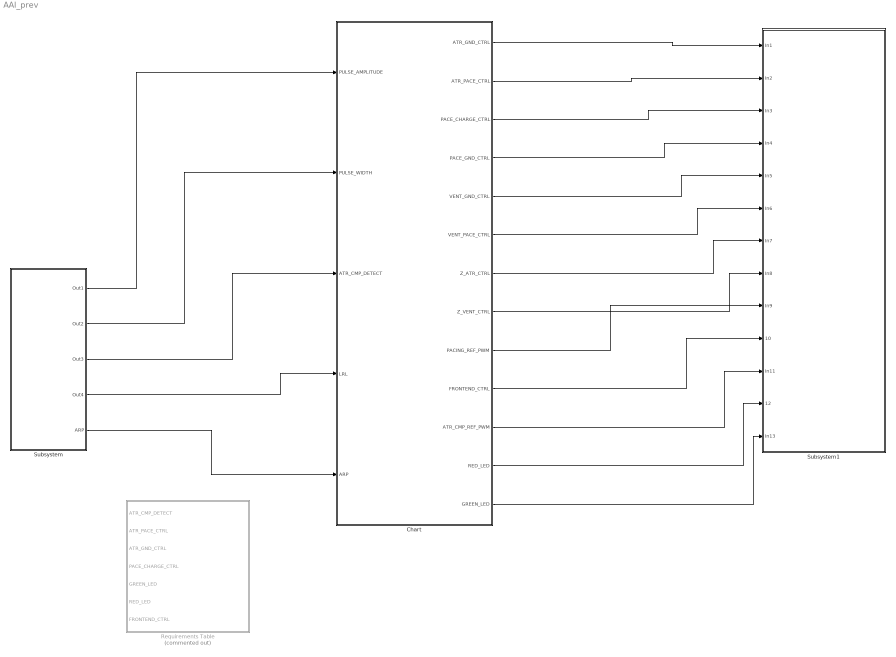
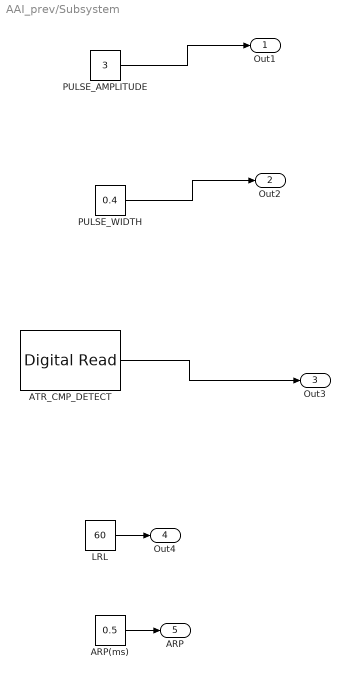
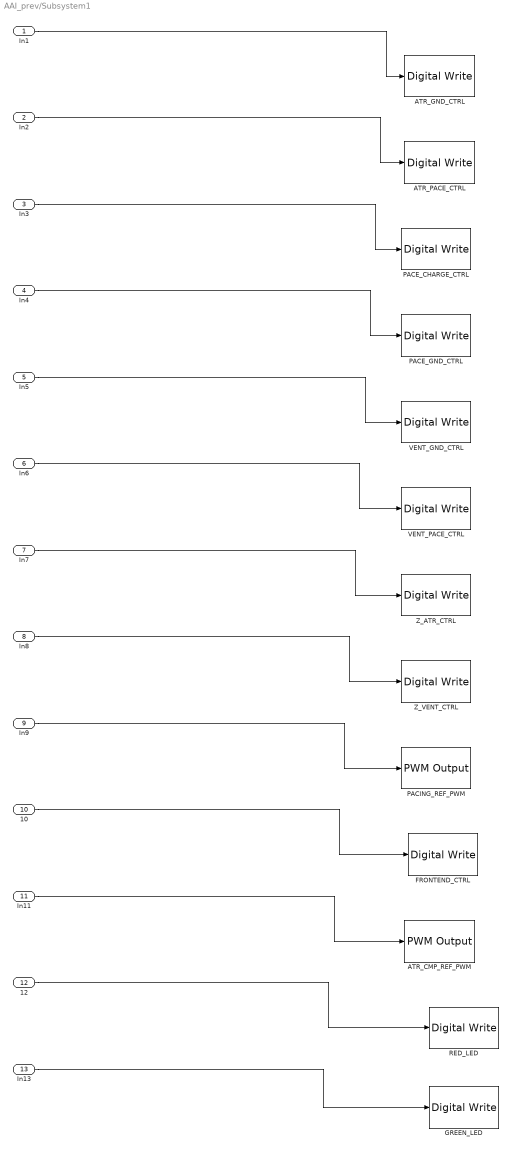
== stateflow chart AAI_prev/Requirements Table ==
  (default) -> (junction 1073742813)
  (junction 1073742813) -> (junction 1073742814) : { % SF_REQ_REV_07 }
  (junction 1073742814) -> (junction 1073742816) : { % HEADER_ASSIGNMENTS  }
  (junction 1073742816) -> (junction 1073742818) : { % START_A_4 }
  (junction 1073742818) -> (junction 1073742820) : { }
  (junction 1073742820) -> (junction 1073742822)
  (junction 1073742822) -> (junction 1073742824) : { }
  (junction 1073742824) -> (junction 1073742826) : { % END_A_4 }
  (junction 1073742826) -> (junction 1073742828) : { % START_R_1 }
  (junction 1073742828) -> (junction 1073742830) : { }
  (junction 1073742830) -> (junction 1073742832) : {       }
  (junction 1073742832) -> (junction 1073742834) : { }
  (junction 1073742834) -> (junction 1073742836) : { % START_R_7 }
  (junction 1073742836) -> (junction 1073742838) : { }
  (junction 1073742838) -> (junction 1073742840)
  (junction 1073742840) -> (junction 1073742842) [order 1] : [(prev(FRONTEND_CTRL)==true) && (prev(PACE_CHARGE_CTRL)==true) && (prev(ATR_PACE_CTRL)==false) && (prev(ATR_GND_CTRL)==true) && (prev(RED_LED)==false) && (prev(GREEN_LED)==false)]
  (junction 1073742840) -> (junction 1073742884) [order 2]
  (junction 1073742842) -> (junction 1073742844) : {       }
  (junction 1073742844) -> (junction 1073742846) : { }
  (junction 1073742846) -> (junction 1073742848) : { % START_R_10 }
  (junction 1073742848) -> (junction 1073742850) : { }
  (junction 1073742850) -> (junction 1073742852)
  (junction 1073742852) -> (junction 1073742854) [order 1] : [(prev(ATR_CMP_DETECT)==true)]
  (junction 1073742852) -> (junction 1073742860) [order 2]
  (junction 1073742854) -> (junction 1073742856) : { reqtable_postcondition((FRONTEND_CTRL==false) && (PACE_CHARGE_CTRL==false) && (ATR_PACE_CTRL==false) && (ATR_GND_CTRL == true) && (GREEN_LED==true), 'R:1.1.1');       }
  (junction 1073742856) -> (junction 1073742858) : { }
  (junction 1073742858) -> (junction 1073742860)
  (junction 1073742860) -> (junction 1073742862)
  (junction 1073742862) -> (junction 1073742864) : { % END_R_10 }
  (junction 1073742864) -> (junction 1073742866) : { % START_R_13 }
  (junction 1073742866) -> (junction 1073742868) : { }
  (junction 1073742868) -> (junction 1073742870)
  (junction 1073742870) -> (junction 1073742872) [order 1] : [duration((prev(ATR_CMP_DETECT)==false)) >= ((60000/LRL)-PULSE_WIDTH)/1000]
  (junction 1073742870) -> (junction 1073742878) [order 2]
  (junction 1073742872) -> (junction 1073742874) : { reqtable_postcondition((FRONTEND_CTRL==true) && (PACE_CHARGE_CTRL==false) && (ATR_PACE_CTRL==true) && (ATR_GND_CTRL == false) && (RED_LED==true), 'R:1.1.2');       }
  (junction 1073742874) -> (junction 1073742876) : { }
  (junction 1073742876) -> (junction 1073742878)
  (junction 1073742878) -> (junction 1073742880)
  (junction 1073742880) -> (junction 1073742882) : { % END_R_13 }
  (junction 1073742882) -> (junction 1073742884)
  (junction 1073742884) -> (junction 1073742886)
  (junction 1073742886) -> (junction 1073742888) : { % END_R_7 }
  (junction 1073742888) -> (junction 1073742890) : { % START_R_16 }
  (junction 1073742890) -> (junction 1073742892) : { }
  (junction 1073742892) -> (junction 1073742894)
  (junction 1073742894) -> (junction 1073742896) [order 1] : [(prev(FRONTEND_CTRL)==true) && (prev(PACE_CHARGE_CTRL)==false) && (prev(ATR_PACE_CTRL)==true) && (prev(ATR_GND_CTRL)==false) && (prev(RED_LED)==true) && (prev(GREEN_LED)==false)]
  (junction 1073742894) -> (junction 1073742938) [order 2]
  (junction 1073742896) -> (junction 1073742898) : {       }
  (junction 1073742898) -> (junction 1073742900) : { }
  (junction 1073742900) -> (junction 1073742902) : { % START_R_19 }
  (junction 1073742902) -> (junction 1073742904) : { }
  (junction 1073742904) -> (junction 1073742906)
  (junction 1073742906) -> (junction 1073742908) [order 1] : [duration((prev(ATR_CMP_DETECT)==false)) >= (PULSE_WIDTH)/1000]
  (junction 1073742906) -> (junction 1073742914) [order 2]
  (junction 1073742908) -> (junction 1073742910) : { reqtable_postcondition((FRONTEND_CTRL==true) && (PACE_CHARGE_CTRL==true) && (ATR_PACE_CTRL==false) && (ATR_GND_CTRL == true) && (RED_LED==false), 'R:1.2.1');       }
  (junction 1073742910) -> (junction 1073742912) : { }
  (junction 1073742912) -> (junction 1073742914)
  (junction 1073742914) -> (junction 1073742916)
  (junction 1073742916) -> (junction 1073742918) : { % END_R_19 }
  (junction 1073742918) -> (junction 1073742920) : { % START_R_22 }
  (junction 1073742920) -> (junction 1073742922) : { }
  (junction 1073742922) -> (junction 1073742924)
  (junction 1073742924) -> (junction 1073742926) [order 1] : [(prev(ATR_CMP_DETECT)==true)]
  (junction 1073742924) -> (junction 1073742932) [order 2]
  (junction 1073742926) -> (junction 1073742928) : { reqtable_postcondition((FRONTEND_CTRL==false) && (PACE_CHARGE_CTRL==false) && (ATR_PACE_CTRL==false) && (ATR_GND_CTRL == true) && (GREEN_LED==true), 'R:1.2.2');       }
  (junction 1073742928) -> (junction 1073742930) : { }
  (junction 1073742930) -> (junction 1073742932)
  (junction 1073742932) -> (junction 1073742934)
  (junction 1073742934) -> (junction 1073742936) : { % END_R_22 }
  (junction 1073742936) -> (junction 1073742938)
  (junction 1073742938) -> (junction 1073742940)
  (junction 1073742940) -> (junction 1073742942) : { % END_R_16 }
  (junction 1073742942) -> (junction 1073742944) : { % START_R_25 }
  (junction 1073742944) -> (junction 1073742946) : { }
  (junction 1073742946) -> (junction 1073742948)
  (junction 1073742948) -> (junction 1073742950) [order 1] : [(prev(FRONTEND_CTRL)==false) && (prev(PACE_CHARGE_CTRL)==false) && (prev(ATR_PACE_CTRL)==false) && (prev(ATR_GND_CTRL)==true) && (prev(GREEN_LED)==true)]
  (junction 1073742948) -> (junction 1073742956) [order 2]
  (junction 1073742950) -> (junction 1073742952) : { reqtable_postcondition((FRONTEND_CTRL==true) && (PACE_CHARGE_CTRL==true) && (ATR_PACE_CTRL==false) && (ATR_GND_CTRL == true) && (GREEN_LED==false), 'R:1.3');       }
  (junction 1073742952) -> (junction 1073742954) : { }
  (junction 1073742954) -> (junction 1073742956)
  (junction 1073742956) -> (junction 1073742958)
  (junction 1073742958) -> (junction 1073742960) : { % END_R_25 }
  (junction 1073742960) -> (junction 1073742962) : { % END_R_1 }
  data: ATR_CMP_DETECT input; PULSE_WIDTH constant double; LRL constant double; ATR_PACE_CTRL input; ATR_GND_CTRL input; PACE_CHARGE_CTRL input; GREEN_LED input; RED_LED input; FRONTEND_CTRL input

== stateflow chart AAI_prev/Chart ==
  state PACE_OFF
    entry:
    ATR_PACE_CTRL = 0
    VENT_PACE_CTRL = 0
    PACING_REF_PWM = 20*PULSE_AMPLITUDE
    PACE_CHARGE_CTRL = 1
    PACE_GND_CTRL = 1
    Z_ATR_CTRL = 0
    Z_VENT_CTRL = 0
    ATR_GND_CTRL = 1
    VENT_GND_CTRL = 0
    FRONTEND_CTRL = 1
    ATR_CMP_REF_PWM = 20*PULSE_AMPLITUDE
    % light indicators
    RED_LED = 0
    GREEN_LED = 0
  state PACE_ON
    entry:
    PACE_CHARGE_CTRL = 0
    PACE_GND_CTRL = 1
    ATR_PACE_CTRL = 1
    ATR_GND_CTRL = 0
    Z_ATR_CTRL = 0
    Z_VENT_CTRL = 0
    VENT_GND_CTRL = 0
    VENT_PACE_CTRL = 0
    % light indicator
    RED_LED = 1
  note: at paceon state, the system waits for the atr_cmp_detect signal to decide which mode to go to . if atr_cmp_detect == 0, pace on. else, go refractory mode.
  note: when pacing, after the pulse width, the mode would change to refractory mdoe
  state REFRACTORY
    entry:
    FRONTEND_CTRL = 0
    ATR_PACE_CTRL = 0
    ATR_GND_CTRL = 1
    PACING_REF_PWM = 20*PULSE_AMPLITUDE
    PACE_CHARGE_CTRL = 0
    PACE_GND_CTRL = 1
    % light indicator
    GREEN_LED = 1
  (default) -> PACE_OFF
  PACE_OFF -> PACE_ON [order 1] : [(ATR_CMP_DETECT == 0) && after((60000/LRL)-PULSE_WIDTH-ARP,msec)]
  PACE_ON -> REFRACTORY : [after(PULSE_WIDTH,msec)]
  REFRACTORY -> PACE_OFF : [after(ARP,msec)]
  PACE_OFF -> REFRACTORY [order 2] : [ATR_CMP_DETECT == 1]
  data: ATR_GND_CTRL output; ATR_PACE_CTRL output; PACE_CHARGE_CTRL output; PACE_GND_CTRL output; VENT_GND_CTRL output; VENT_PACE_CTRL output; Z_ATR_CTRL output; Z_VENT_CTRL output; PULSE_AMPLITUDE input; PACING_REF_PWM output; FRONTEND_CTRL output; ATR_CMP_REF_PWM output; RED_LED output; PULSE_WIDTH input; ATR_CMP_DETECT input; GREEN_LED output; LRL input; ARP input

/*
 * Academic License - for use in teaching, academic research, and meeting
 * course requirements at degree granting institutions only.  Not for
 * government, commercial, or other organizational use.
 *
 * File: AAI_prev.c
 *
 * Code generated for Simulink model 'AAI_prev'.
 *
 * Model version                  : 1.23
 * Simulink Coder version         : 9.7 (R2022a) 13-Nov-2021
 * C/C++ source code generated on : Thu Nov 24 18:57:48 2022
 *
 * Target selection: ert.tlc
 * Embedded hardware selection: ARM Compatible->ARM Cortex
 * Code generation objectives: Unspecified
 * Validation result: Not run
 */

#include "AAI_prev.h"
#include "rtwtypes.h"
#include <math.h>
#include "AAI_prev_types.h"

/* Named constants for Chart: '<Root>/Chart' */
#define AAI_prev_IN_PACE_OFF           ((uint8_T)1U)
#define AAI_prev_IN_PACE_ON            ((uint8_T)2U)
#define AAI_prev_IN_REFRACTORY         ((uint8_T)3U)

/* Block signals (default storage) */
B_AAI_prev_T AAI_prev_B;

/* Block states (default storage) */
DW_AAI_prev_T AAI_prev_DW;

/* Real-time model */
static RT_MODEL_AAI_prev_T AAI_prev_M_;
RT_MODEL_AAI_prev_T *const AAI_prev_M = &AAI_prev_M_;

/* Forward declaration for local functions */
static void AAI_prev_enter_atomic_PACE_OFF(real_T *PACE_GND_CTRL, real_T
  *PACE_CHARGE_CTRL, real_T *ATR_PACE_CTRL, real_T *ATR_GND_CTRL);

/* Function for Chart: '<Root>/Chart' */
static void AAI_prev_enter_atomic_PACE_OFF(real_T *PACE_GND_CTRL, real_T
  *PACE_CHARGE_CTRL, real_T *ATR_PACE_CTRL, real_T *ATR_GND_CTRL)
{
  *ATR_PACE_CTRL = 0.0;
  AAI_prev_B.VENT_PACE_CTRL = 0.0;

  /* Constant: '<S2>/PULSE_AMPLITUDE' */
  AAI_prev_B.PACING_REF_PWM = 20.0 * AAI_prev_P.PULSE_AMPLITUDE_Value;
  *PACE_CHARGE_CTRL = 1.0;
  *PACE_GND_CTRL = 1.0;
  AAI_prev_B.Z_ATR_CTRL = 0.0;
  AAI_prev_B.Z_VENT_CTRL = 0.0;
  *ATR_GND_CTRL = 1.0;
  AAI_prev_B.VENT_GND_CTRL = 0.0;
  AAI_prev_B.FRONTEND_CTRL = 1.0;

  /* Constant: '<S2>/PULSE_AMPLITUDE' */
  AAI_prev_B.ATR_CMP_REF_PWM = 20.0 * AAI_prev_P.PULSE_AMPLITUDE_Value;
  AAI_prev_B.RED_LED = 0.0;
  AAI_prev_B.GREEN_LED = 0.0;
}

/* Model step function */
void AAI_prev_step(void)
{
  real_T ATR_GND_CTRL;
  real_T ATR_PACE_CTRL;
  real_T PACE_CHARGE_CTRL;
  real_T PACE_GND_CTRL;
  boolean_T out;
  boolean_T tmp;

  /* MATLABSystem: '<S2>/ATR_CMP_DETECT' */
  if (AAI_prev_DW.obj.SampleTime != AAI_prev_P.ATR_CMP_DETECT_SampleTime) {
    AAI_prev_DW.obj.SampleTime = AAI_prev_P.ATR_CMP_DETECT_SampleTime;
  }

  tmp = MW_digitalIO_read(AAI_prev_DW.obj.MW_DIGITALIO_HANDLE);

  /* Chart: '<Root>/Chart' incorporates:
   *  Constant: '<S2>/ARP(ms)'
   *  Constant: '<S2>/LRL'
   *  Constant: '<S2>/PULSE_AMPLITUDE'
   *  Constant: '<S2>/PULSE_WIDTH'
   *  MATLABSystem: '<S2>/ATR_CMP_DETECT'
   */
  if (AAI_prev_DW.temporalCounter_i1 < MAX_uint32_T) {
    AAI_prev_DW.temporalCounter_i1++;
  }

  if (AAI_prev_DW.is_active_c3_AAI_prev == 0U) {
    AAI_prev_DW.is_active_c3_AAI_prev = 1U;
    AAI_prev_DW.is_c3_AAI_prev = AAI_prev_IN_PACE_OFF;
    AAI_prev_DW.temporalCounter_i1 = 0U;
    AAI_prev_enter_atomic_PACE_OFF(&PACE_GND_CTRL, &PACE_CHARGE_CTRL,
      &ATR_PACE_CTRL, &ATR_GND_CTRL);
  } else {
    switch (AAI_prev_DW.is_c3_AAI_prev) {
     case AAI_prev_IN_PACE_OFF:
      ATR_PACE_CTRL = 0.0;
      AAI_prev_B.VENT_PACE_CTRL = 0.0;
      PACE_CHARGE_CTRL = 1.0;
      PACE_GND_CTRL = 1.0;
      AAI_prev_B.Z_ATR_CTRL = 0.0;
      AAI_prev_B.Z_VENT_CTRL = 0.0;
      ATR_GND_CTRL = 1.0;
      AAI_prev_B.VENT_GND_CTRL = 0.0;
      AAI_prev_B.FRONTEND_CTRL = 1.0;
      AAI_prev_B.RED_LED = 0.0;
      AAI_prev_B.GREEN_LED = 0.0;
      if (!tmp) {
        out = (AAI_prev_DW.temporalCounter_i1 >= (uint32_T)ceil((60000.0 /
                 AAI_prev_P.LRL_Value - AAI_prev_P.PULSE_WIDTH_Value) -
                AAI_prev_P.ARPms_Value));
      } else {
        out = false;
      }

      if (out) {
        AAI_prev_DW.is_c3_AAI_prev = AAI_prev_IN_PACE_ON;
        AAI_prev_DW.temporalCounter_i1 = 0U;
        PACE_CHARGE_CTRL = 0.0;
        ATR_PACE_CTRL = 1.0;
        ATR_GND_CTRL = 0.0;
        AAI_prev_B.RED_LED = 1.0;
      } else if (tmp) {
        AAI_prev_DW.is_c3_AAI_prev = AAI_prev_IN_REFRACTORY;
        AAI_prev_DW.temporalCounter_i1 = 0U;
        AAI_prev_B.FRONTEND_CTRL = 0.0;
        AAI_prev_B.PACING_REF_PWM = 20.0 * AAI_prev_P.PULSE_AMPLITUDE_Value;
        PACE_CHARGE_CTRL = 0.0;
        AAI_prev_B.GREEN_LED = 1.0;
      }
      break;

     case AAI_prev_IN_PACE_ON:
      PACE_CHARGE_CTRL = 0.0;
      PACE_GND_CTRL = 1.0;
      ATR_PACE_CTRL = 1.0;
      ATR_GND_CTRL = 0.0;
      AAI_prev_B.Z_ATR_CTRL = 0.0;
      AAI_prev_B.Z_VENT_CTRL = 0.0;
      AAI_prev_B.VENT_GND_CTRL = 0.0;
      AAI_prev_B.VENT_PACE_CTRL = 0.0;
      AAI_prev_B.RED_LED = 1.0;
      if (AAI_prev_DW.temporalCounter_i1 >= (uint32_T)ceil
          (AAI_prev_P.PULSE_WIDTH_Value)) {
        AAI_prev_DW.is_c3_AAI_prev = AAI_prev_IN_REFRACTORY;
        AAI_prev_DW.temporalCounter_i1 = 0U;
        AAI_prev_B.FRONTEND_CTRL = 0.0;
        ATR_PACE_CTRL = 0.0;
        ATR_GND_CTRL = 1.0;
        AAI_prev_B.PACING_REF_PWM = 20.0 * AAI_prev_P.PULSE_AMPLITUDE_Value;
        AAI_prev_B.GREEN_LED = 1.0;
      }
      break;

     default:
      /* case IN_REFRACTORY: */
      AAI_prev_B.FRONTEND_CTRL = 0.0;
      ATR_PACE_CTRL = 0.0;
      ATR_GND_CTRL = 1.0;
      PACE_CHARGE_CTRL = 0.0;
      PACE_GND_CTRL = 1.0;
      AAI_prev_B.GREEN_LED = 1.0;
      if (AAI_prev_DW.temporalCounter_i1 >= (uint32_T)ceil
          (AAI_prev_P.ARPms_Value)) {
        AAI_prev_DW.is_c3_AAI_prev = AAI_prev_IN_PACE_OFF;
        AAI_prev_DW.temporalCounter_i1 = 0U;
        AAI_prev_enter_atomic_PACE_OFF(&PACE_GND_CTRL, &PACE_CHARGE_CTRL,
          &ATR_PACE_CTRL, &ATR_GND_CTRL);
      }
      break;
    }
  }

  /* End of Chart: '<Root>/Chart' */

  /* MATLABSystem: '<S3>/ATR_GND_CTRL' */
  MW_digitalIO_write(AAI_prev_DW.obj_h5.MW_DIGITALIO_HANDLE, ATR_GND_CTRL != 0.0);

  /* MATLABSystem: '<S3>/ATR_PACE_CTRL' */
  MW_digitalIO_write(AAI_prev_DW.obj_h.MW_DIGITALIO_HANDLE, ATR_PACE_CTRL != 0.0);

  /* MATLABSystem: '<S3>/PACE_CHARGE_CTRL' */
  MW_digitalIO_write(AAI_prev_DW.obj_jv.MW_DIGITALIO_HANDLE, PACE_CHARGE_CTRL !=
                     0.0);

  /* MATLABSystem: '<S3>/PACE_GND_CTRL' */
  MW_digitalIO_write(AAI_prev_DW.obj_b.MW_DIGITALIO_HANDLE, PACE_GND_CTRL != 0.0);

  /* MATLABSystem: '<S3>/VENT_GND_CTRL' */
  MW_digitalIO_write(AAI_prev_DW.obj_ib.MW_DIGITALIO_HANDLE,
                     AAI_prev_B.VENT_GND_CTRL != 0.0);

  /* MATLABSystem: '<S3>/VENT_PACE_CTRL' */
  MW_digitalIO_write(AAI_prev_DW.obj_i.MW_DIGITALIO_HANDLE,
                     AAI_prev_B.VENT_PACE_CTRL != 0.0);

  /* MATLABSystem: '<S3>/Z_ATR_CTRL' */
  MW_digitalIO_write(AAI_prev_DW.obj_n.MW_DIGITALIO_HANDLE,
                     AAI_prev_B.Z_ATR_CTRL != 0.0);

  /* MATLABSystem: '<S3>/Z_VENT_CTRL' */
  MW_digitalIO_write(AAI_prev_DW.obj_j.MW_DIGITALIO_HANDLE,
                     AAI_prev_B.Z_VENT_CTRL != 0.0);

  /* MATLABSystem: '<S3>/ PACING_REF_PWM' */
  MW_PWM_SetDutyCycle(AAI_prev_DW.obj_g.MW_PWM_HANDLE, AAI_prev_B.PACING_REF_PWM);

  /* MATLABSystem: '<S3>/FRONTEND_CTRL' */
  MW_digitalIO_write(AAI_prev_DW.obj_m.MW_DIGITALIO_HANDLE,
                     AAI_prev_B.FRONTEND_CTRL != 0.0);

  /* MATLABSystem: '<S3>/ ATR_CMP_REF_PWM' */
  MW_PWM_SetDutyCycle(AAI_prev_DW.obj_e.MW_PWM_HANDLE,
                      AAI_prev_B.ATR_CMP_REF_PWM);

  /* MATLABSystem: '<S3>/RED_LED' */
  MW_digitalIO_write(AAI_prev_DW.obj_l.MW_DIGITALIO_HANDLE, AAI_prev_B.RED_LED
                     != 0.0);

  /* MATLABSystem: '<S3>/GREEN_LED' */
  MW_digitalIO_write(AAI_prev_DW.obj_ii.MW_DIGITALIO_HANDLE,
                     AAI_prev_B.GREEN_LED != 0.0);
}
